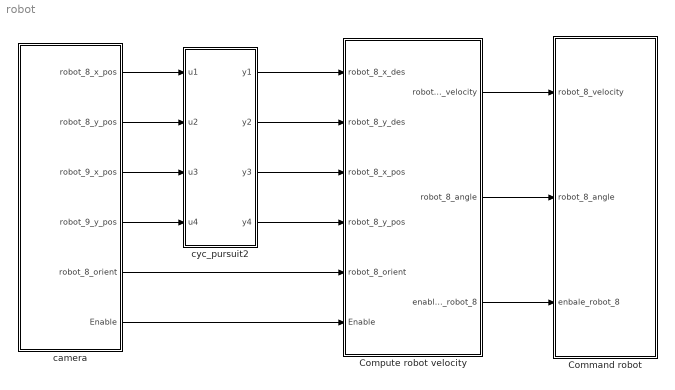
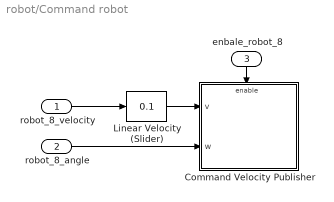
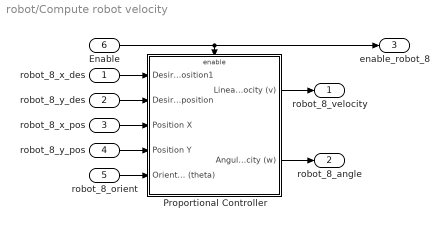
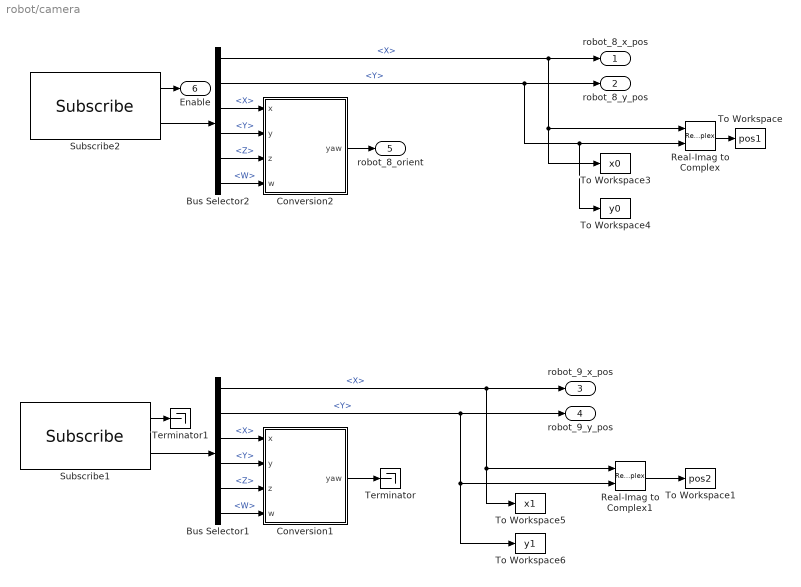
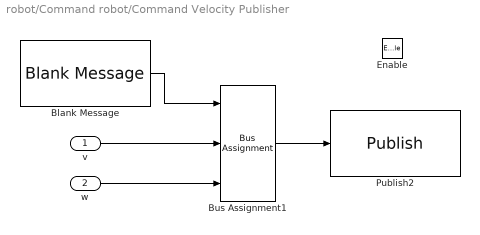
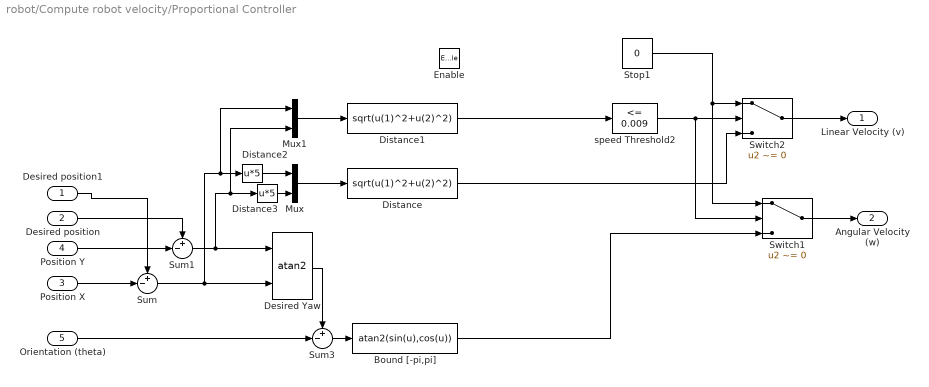
== matlab function robot/cyc_pursuit2 ==
function [y1, y2, y3, y4] = fcn(u1, u2, u3, u4)
%#codegen

y1 = ((1-0.2)*u1+(u3*0.2)+(0.4635*0.2));
y2 = ((1-0.2)*u2+(0.2*u4)-(1.4266*0.2));
y3=u1;
y4=u2;




%       y1 = ((1-0.2)*u1+(u3*0.2)+(1.5451*0.2));
%         y2 = ((1-0.2)*u2+(0.2*u4)+(4.7553*0.2));
%         y3 = ((1-0.2)*u3+(u5*0.2)-(4.0451*0.2));
%         y4 = ((1-0.2)*u4+(u6*0.2)+(2.9389*0.2));
%         y5 = ((1-0.2)*u5+(u7*0.2)-(4.0451*0.2));
%         y6 = ((1-0.2)*u6+(u8*0.2)-(2.9389*0.2));
%         y7 = ((1-0.2)*u7+(u9*0.2)+(1.5451*0.2));
%         y8 = ((1-0.2)*u8+(u10*0.2)-(4.7553*0.2));
%         y9 = ((1-0.2)*u9+(u1*0.2)+(5*0.2));
%         y10 = ((1-0.2)*u10+(u2*0.2)+(0*0.2));

== matlab function robot/camera/Conversion1 ==
function yaw  = quat2eul(x,y,z,w)
%#codegen

% Convert the quaternion to a yaw angle (zyx euler angle)
eul = quat2eul([w,x,y,z]);
yaw = eul(1);

end

== matlab function robot/camera/Conversion2 ==
function yaw  = quat2eul(x,y,z,w)
%#codegen

% Convert the quaternion to a yaw angle (zyx euler angle)
eul = quat2eul([w,x,y,z]);
yaw = eul(1);

end

//
// Academic License - for use in teaching, academic research, and meeting
// course requirements at degree granting institutions only.  Not for
// government, commercial, or other organizational use.
//
// File: robot.cpp
//
// Code generated for Simulink model 'robot'.
//
// Model version                  : 1.15
// Simulink Coder version         : 8.11 (R2016b) 25-Aug-2016
// C/C++ source code generated on : Fri Dec 30 17:27:04 2016
//
// Target selection: ert.tlc
// Embedded hardware selection: Generic->Unspecified (assume 32-bit Generic)
// Code generation objectives: Unspecified
// Validation result: Not run
//
#include "robot.h"
#include "robot_private.h"
#define robot_MessageQueueLen          (105)
#define robot_MessageQueueLen_h        (1)

real_T rt_atan2d_snf(real_T u0, real_T u1)
{
  real_T y;
  int32_T u0_0;
  int32_T u1_0;
  if (rtIsNaN(u0) || rtIsNaN(u1)) {
    y = (rtNaN);
  } else if (rtIsInf(u0) && rtIsInf(u1)) {
    if (u0 > 0.0) {
      u0_0 = 1;
    } else {
      u0_0 = -1;
    }

    if (u1 > 0.0) {
      u1_0 = 1;
    } else {
      u1_0 = -1;
    }

    y = atan2((real_T)u0_0, (real_T)u1_0);
  } else if (u1 == 0.0) {
    if (u0 > 0.0) {
      y = RT_PI / 2.0;
    } else if (u0 < 0.0) {
      y = -(RT_PI / 2.0);
    } else {
      y = 0.0;
    }
  } else {
    y = atan2(u0, u1);
  }

  return y;
}

//
// Output and update for atomic system:
//    '<S3>/Conversion1'
//    '<S3>/Conversion2'
//
void robot_Conversion1(real_T rtu_x, real_T rtu_y, real_T rtu_z, real_T rtu_w,
  B_Conversion1_robot_T *localB)
{
  real_T b_y;
  real_T q_idx_0;
  real_T q_idx_1;
  real_T q_idx_2;

  //  Convert the quaternion to a yaw angle (zyx euler angle)
  // MATLAB Function 'camera/Conversion1': '<S11>:1'
  // '<S11>:1:5' eul = quat2eul([w,x,y,z]);
  b_y = 1.0 / sqrt(((rtu_w * rtu_w + rtu_x * rtu_x) + rtu_y * rtu_y) + rtu_z *
                   rtu_z);
  q_idx_0 = rtu_w * b_y;
  q_idx_1 = rtu_x * b_y;
  q_idx_2 = rtu_y * b_y;
  b_y *= rtu_z;

  // '<S11>:1:6' yaw = eul(1);
  localB->yaw = rt_atan2d_snf((q_idx_1 * q_idx_2 + q_idx_0 * b_y) * 2.0,
    ((q_idx_0 * q_idx_0 + q_idx_1 * q_idx_1) - q_idx_2 * q_idx_2) - b_y * b_y);
}

real_T rt_powd_snf(real_T u0, real_T u1)
{
  real_T y;
  real_T tmp;
  real_T tmp_0;
  if (rtIsNaN(u0) || rtIsNaN(u1)) {
    y = (rtNaN);
  } else {
    tmp = fabs(u0);
    tmp_0 = fabs(u1);
    if (rtIsInf(u1)) {
      if (tmp == 1.0) {
        y = (rtNaN);
      } else if (tmp > 1.0) {
        if (u1 > 0.0) {
          y = (rtInf);
        } else {
          y = 0.0;
        }
      } else if (u1 > 0.0) {
        y = 0.0;
      } else {
        y = (rtInf);
      }
    } else if (tmp_0 == 0.0) {
      y = 1.0;
    } else if (tmp_0 == 1.0) {
      if (u1 > 0.0) {
        y = u0;
      } else {
        y = 1.0 / u0;
      }
    } else if (u1 == 2.0) {
      y = u0 * u0;
    } else if ((u1 == 0.5) && (u0 >= 0.0)) {
      y = sqrt(u0);
    } else if ((u0 < 0.0) && (u1 > floor(u1))) {
      y = (rtNaN);
    } else {
      y = pow(u0, u1);
    }
  }

  return y;
}

// Model step function
void robot_0ModelClass::step()
{
  boolean_T varargout_1;
  boolean_T varargout_1_0;

  // Outputs for Atomic SubSystem: '<S3>/Subscribe2'
  // Start for MATLABSystem: '<S14>/SourceBlock' incorporates:
  //   Inport: '<S16>/In1'
  //   MATLABSystem: '<S14>/SourceBlock'

  varargout_1 = Sub_robot_11.getLatestMessage(&robot_B.varargout_2);

  // Outputs for Enabled SubSystem: '<S14>/Enabled Subsystem' incorporates:
  //   EnablePort: '<S16>/Enable'

  if (varargout_1) {
    robot_B.In1 = robot_B.varargout_2;
  }

  // End of Outputs for SubSystem: '<S14>/Enabled Subsystem'
  // End of Outputs for SubSystem: '<S3>/Subscribe2'

  // Outputs for Atomic SubSystem: '<S3>/Subscribe1'
  // Start for MATLABSystem: '<S13>/SourceBlock' incorporates:
  //   Inport: '<S15>/In1'
  //   MATLABSystem: '<S13>/SourceBlock'

  varargout_1_0 = Sub_robot_10.getLatestMessage(&robot_B.varargout_2);

  // Outputs for Enabled SubSystem: '<S13>/Enabled Subsystem' incorporates:
  //   EnablePort: '<S15>/Enable'

  if (varargout_1_0) {
    robot_B.In1_d = robot_B.varargout_2;
  }

  // End of Start for MATLABSystem: '<S13>/SourceBlock'
  // End of Outputs for SubSystem: '<S13>/Enabled Subsystem'
  // End of Outputs for SubSystem: '<S3>/Subscribe1'

  // MATLAB Function: '<S3>/Conversion2'
  // MATLAB Function 'cyc_pursuit2': '<S4>:1'
  // '<S4>:1:4' y1 = ((1-0.2)*u1+(u3*0.2)-(1.2135*0.2));
  // '<S4>:1:5' y2 = ((1-0.2)*u2+(0.2*u4)-(0.8817*0.2));
  // '<S4>:1:6' y3=u1;
  // '<S4>:1:7' y4=u2;
  robot_Conversion1(robot_B.In1.Pose.Orientation.X,
                    robot_B.In1.Pose.Orientation.Y,
                    robot_B.In1.Pose.Orientation.Z,
                    robot_B.In1.Pose.Orientation.W, &robot_B.sf_Conversion2);

  // Outputs for Enabled SubSystem: '<S1>/Command Velocity Publisher' incorporates:
  //   EnablePort: '<S5>/Enable'

  // Outputs for Enabled SubSystem: '<S2>/Proportional Controller' incorporates:
  //   EnablePort: '<S9>/Enable'

  // Outputs for Atomic SubSystem: '<S3>/Subscribe2'
  // Start for MATLABSystem: '<S14>/SourceBlock' incorporates:
  //   MATLABSystem: '<S14>/SourceBlock'

  if (varargout_1) {
    // Sum: '<S9>/Sum1' incorporates:
    //   MATLAB Function: '<Root>/cyc_pursuit2'
    //   SignalConversion: '<S3>/SigConversion_InsertedFor_Bus Selector1_at_outport_1'
    //   SignalConversion: '<S3>/SigConversion_InsertedFor_Bus Selector2_at_outport_1'

    robot_B.Sum1 = ((0.8 * robot_B.In1.Pose.Position.Y + 0.2 *
                     robot_B.In1_d.Pose.Position.Y) - 0.17634000000000002) -
      robot_B.In1.Pose.Position.Y;

    // Sum: '<S9>/Sum' incorporates:
    //   MATLAB Function: '<Root>/cyc_pursuit2'
    //   SignalConversion: '<S3>/SigConversion_InsertedFor_Bus Selector1_at_outport_0'
    //   SignalConversion: '<S3>/SigConversion_InsertedFor_Bus Selector2_at_outport_0'

    robot_B.Sum = ((0.8 * robot_B.In1.Pose.Position.X +
                    robot_B.In1_d.Pose.Position.X * 0.2) - 0.24270000000000003)
      - robot_B.In1.Pose.Position.X;

    // Fcn: '<S9>/Distance1'
    robot_B.Sum3 = rt_powd_snf(robot_B.Sum, 2.0) + rt_powd_snf(robot_B.Sum1, 2.0);
    if (robot_B.Sum3 < 0.0) {
      robot_B.Sum3 = -sqrt(-robot_B.Sum3);
    } else {
      robot_B.Sum3 = sqrt(robot_B.Sum3);
    }

    // End of Fcn: '<S9>/Distance1'

    // Switch: '<S9>/Switch1' incorporates:
    //   Constant: '<S10>/Constant'
    //   Constant: '<S9>/Stop1'
    //   Fcn: '<S9>/Bound [-pi,pi]'
    //   RelationalOperator: '<S10>/Compare'
    //   Switch: '<S9>/Switch2'

    if (robot_B.Sum3 <= robot_P.speedThreshold2_const) {
      robot_B.Switch1 = robot_P.Stop1_Value;
      robot_B.Sum1 = robot_P.Stop1_Value;
    } else {
      // Sum: '<S9>/Sum3' incorporates:
      //   Trigonometry: '<S9>/Desired Yaw'

      robot_B.Sum3 = rt_atan2d_snf(robot_B.Sum1, robot_B.Sum) -
        robot_B.sf_Conversion2.yaw;
      robot_B.Switch1 = rt_atan2d_snf(sin(robot_B.Sum3), cos(robot_B.Sum3));

      // Fcn: '<S9>/Distance3' incorporates:
      //   Fcn: '<S9>/Bound [-pi,pi]'

      robot_B.Sum1 *= 5.0;

      // Fcn: '<S9>/Distance2'
      robot_B.Sum *= 5.0;

      // Fcn: '<S9>/Distance'
      robot_B.Sum3 = rt_powd_snf(robot_B.Sum, 2.0) + rt_powd_snf(robot_B.Sum1,
        2.0);
      if (robot_B.Sum3 < 0.0) {
        robot_B.Sum1 = -sqrt(-robot_B.Sum3);
      } else {
        robot_B.Sum1 = sqrt(robot_B.Sum3);
      }

      // End of Fcn: '<S9>/Distance'
    }

    // End of Switch: '<S9>/Switch1'

    // BusAssignment: '<S5>/Bus Assignment1' incorporates:
    //   Constant: '<S7>/Constant'
    //   Gain: '<S6>/Slider Gain'

    robot_B.BusAssignment1 = robot_P.Constant_Value_p;
    robot_B.BusAssignment1.Linear.X = robot_P.LinearVelocitySlider_gain *
      robot_B.Sum1;
    robot_B.BusAssignment1.Angular.Z = robot_B.Switch1;

    // Outputs for Atomic SubSystem: '<S5>/Publish2'
    // Start for MATLABSystem: '<S8>/SinkBlock' incorporates:
    //   MATLABSystem: '<S8>/SinkBlock'

    Pub_robot_75.publish(&robot_B.BusAssignment1);

    // End of Outputs for SubSystem: '<S5>/Publish2'
  }

  // End of Outputs for SubSystem: '<S3>/Subscribe2'
  // End of Outputs for SubSystem: '<S2>/Proportional Controller'
  // End of Outputs for SubSystem: '<S1>/Command Velocity Publisher'

  // MATLAB Function: '<S3>/Conversion1'
  robot_Conversion1(robot_B.In1_d.Pose.Orientation.X,
                    robot_B.In1_d.Pose.Orientation.Y,
                    robot_B.In1_d.Pose.Orientation.Z,
                    robot_B.In1_d.Pose.Orientation.W, &robot_B.sf_Conversion1);
}
